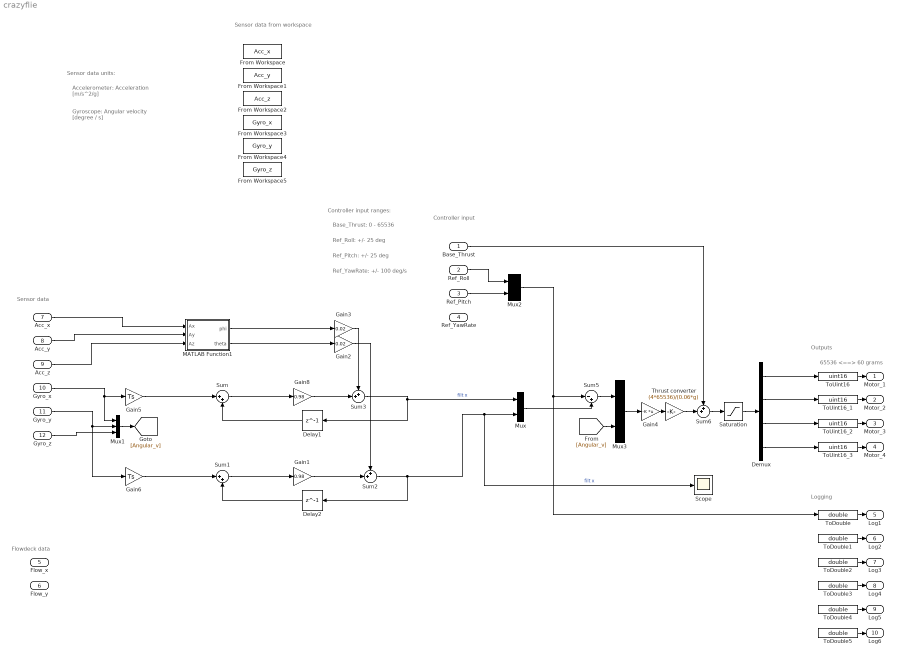
== matlab function crazyflie/MATLAB Function1 ==
function [phi, theta] = fcn(Ax,Ay,Az)
    
phi = atan2d(Ay,Az);
theta = atan2d(-Ax,norm([Ay Az]));
end

/*
 * crazyflie.c
 *
 * Academic License - for use in teaching, academic research, and meeting
 * course requirements at degree granting institutions only.  Not for
 * government, commercial, or other organizational use.
 *
 * Code generation for model "crazyflie".
 *
 * Model version              : 6.18
 * Simulink Coder version : 9.4 (R2020b) 29-Jul-2020
 * C source code generated on : Tue May 25 20:40:19 2021
 *
 * Target selection: grt.tlc
 * Note: GRT includes extra infrastructure and instrumentation for prototyping
 * Embedded hardware selection: ARM Compatible->ARM Cortex
 * Code generation objectives: Unspecified
 * Validation result: Not run
 */

#include "crazyflie.h"
#include "crazyflie_private.h"

/* Block states (default storage) */
DW_crazyflie_T crazyflie_DW;

/* External inputs (root inport signals with default storage) */
ExtU_crazyflie_T crazyflie_U;

/* External outputs (root outports fed by signals with default storage) */
ExtY_crazyflie_T crazyflie_Y;

/* Real-time model */
static RT_MODEL_crazyflie_T crazyflie_M_;
RT_MODEL_crazyflie_T *const crazyflie_M = &crazyflie_M_;
real_T rt_atan2d_snf(real_T u0, real_T u1)
{
  real_T y;
  int32_T u0_0;
  int32_T u1_0;
  if (rtIsNaN(u0) || rtIsNaN(u1)) {
    y = (rtNaN);
  } else if (rtIsInf(u0) && rtIsInf(u1)) {
    if (u0 > 0.0) {
      u0_0 = 1;
    } else {
      u0_0 = -1;
    }

    if (u1 > 0.0) {
      u1_0 = 1;
    } else {
      u1_0 = -1;
    }

    y = atan2(u0_0, u1_0);
  } else if (u1 == 0.0) {
    if (u0 > 0.0) {
      y = RT_PI / 2.0;
    } else if (u0 < 0.0) {
      y = -(RT_PI / 2.0);
    } else {
      y = 0.0;
    }
  } else {
    y = atan2(u0, u1);
  }

  return y;
}

/* Model step function */
void crazyflie_step(void)
{
  /* local block i/o variables */
  real_T rtb_filtx_a;
  real_T scale_0[5];
  real_T rtb_Saturation[4];
  real_T tmp[4];
  real_T absxk;
  real_T scale;
  real_T t;
  real_T y;
  int32_T i;
  int32_T i_0;

  /* MATLAB Function: '<Root>/MATLAB Function1' incorporates:
   *  Inport: '<Root>/Acc_y'
   *  Inport: '<Root>/Acc_z'
   */
  /* MATLAB Function 'MATLAB Function1': '<S1>:1' */
  /* '<S1>:1:3' phi = atan2d(Ay,Az); */
  /* '<S1>:1:4' theta = atan2d(-Ax,norm([Ay Az])); */
  scale = 3.3121686421112381E-170;
  absxk = fabs(crazyflie_U.Acc_y);
  if (absxk > 3.3121686421112381E-170) {
    y = 1.0;
    scale = absxk;
  } else {
    t = absxk / 3.3121686421112381E-170;
    y = t * t;
  }

  absxk = fabs(crazyflie_U.Acc_z);
  if (absxk > scale) {
    t = scale / absxk;
    y = y * t * t + 1.0;
    scale = absxk;
  } else {
    t = absxk / scale;
    y += t * t;
  }

  y = scale * sqrt(y);

  /* Sum: '<Root>/Sum3' incorporates:
   *  Delay: '<Root>/Delay1'
   *  Gain: '<Root>/Gain3'
   *  Gain: '<Root>/Gain5'
   *  Gain: '<Root>/Gain8'
   *  Inport: '<Root>/Acc_y'
   *  Inport: '<Root>/Acc_z'
   *  Inport: '<Root>/Gyro_x'
   *  MATLAB Function: '<Root>/MATLAB Function1'
   *  Sum: '<Root>/Sum'
   */
  scale = (0.0001 * crazyflie_U.Gyro_x + crazyflie_DW.Delay1_DSTATE) * 0.98 +
    57.295779513082323 * rt_atan2d_snf(crazyflie_U.Acc_y, crazyflie_U.Acc_z) *
    0.02;

  /* Sum: '<Root>/Sum2' incorporates:
   *  Delay: '<Root>/Delay2'
   *  Gain: '<Root>/Gain1'
   *  Gain: '<Root>/Gain2'
   *  Gain: '<Root>/Gain6'
   *  Inport: '<Root>/Acc_x'
   *  Inport: '<Root>/Gyro_y'
   *  MATLAB Function: '<Root>/MATLAB Function1'
   *  Sum: '<Root>/Sum1'
   */
  rtb_filtx_a = (0.0001 * crazyflie_U.Gyro_y + crazyflie_DW.Delay2_DSTATE) *
    0.98 + 57.295779513082323 * rt_atan2d_snf(-crazyflie_U.Acc_x, y) * 0.02;

  /* SignalConversion generated from: '<Root>/Gain4' incorporates:
   *  Inport: '<Root>/Gyro_x'
   *  Inport: '<Root>/Gyro_y'
   *  Inport: '<Root>/Gyro_z'
   *  Inport: '<Root>/Ref_Pitch'
   *  Inport: '<Root>/Ref_Roll'
   *  Sum: '<Root>/Sum5'
   */
  scale_0[0] = scale - crazyflie_U.Ref_Roll;
  scale_0[1] = rtb_filtx_a - crazyflie_U.Ref_Pitch;
  scale_0[2] = crazyflie_U.Gyro_x;
  scale_0[3] = crazyflie_U.Gyro_y;
  scale_0[4] = crazyflie_U.Gyro_z;
  for (i = 0; i < 4; i++) {
    /* Gain: '<Root>/Gain4' */
    tmp[i] = 0.0;
    for (i_0 = 0; i_0 < 5; i_0++) {
      tmp[i] += crazyflie_ConstP.Gain4_Gain[(i_0 << 2) + i] * scale_0[i_0];
    }

    /* End of Gain: '<Root>/Gain4' */

    /* Saturate: '<Root>/Saturation' incorporates:
     *  Gain: '<Root>/Thrust converter'
     *  Inport: '<Root>/Base_Thrust'
     *  Sum: '<Root>/Sum6'
     */
    absxk = 445368.67142371729 * tmp[i] + crazyflie_U.Base_Thrust;
    if (absxk > 65536.0) {
      rtb_Saturation[i] = 65536.0;
    } else if (absxk < 0.0) {
      rtb_Saturation[i] = 0.0;
    } else {
      rtb_Saturation[i] = absxk;
    }

    /* End of Saturate: '<Root>/Saturation' */
  }

  /* DataTypeConversion: '<Root>/ToUint16' */
  if (rtb_Saturation[0] < 65536.0) {
    /* Outport: '<Root>/Motor_1' */
    crazyflie_Y.Motor_1 = (uint16_T)rtb_Saturation[0];
  } else {
    /* Outport: '<Root>/Motor_1' */
    crazyflie_Y.Motor_1 = MAX_uint16_T;
  }

  /* End of DataTypeConversion: '<Root>/ToUint16' */

  /* DataTypeConversion: '<Root>/ToUint16_1' */
  if (rtb_Saturation[1] < 65536.0) {
    /* Outport: '<Root>/Motor_2' */
    crazyflie_Y.Motor_2 = (uint16_T)rtb_Saturation[1];
  } else {
    /* Outport: '<Root>/Motor_2' */
    crazyflie_Y.Motor_2 = MAX_uint16_T;
  }

  /* End of DataTypeConversion: '<Root>/ToUint16_1' */

  /* DataTypeConversion: '<Root>/ToUint16_2' */
  if (rtb_Saturation[2] < 65536.0) {
    /* Outport: '<Root>/Motor_3' */
    crazyflie_Y.Motor_3 = (uint16_T)rtb_Saturation[2];
  } else {
    /* Outport: '<Root>/Motor_3' */
    crazyflie_Y.Motor_3 = MAX_uint16_T;
  }

  /* End of DataTypeConversion: '<Root>/ToUint16_2' */

  /* DataTypeConversion: '<Root>/ToUint16_3' */
  if (rtb_Saturation[3] < 65536.0) {
    /* Outport: '<Root>/Motor_4' */
    crazyflie_Y.Motor_4 = (uint16_T)rtb_Saturation[3];
  } else {
    /* Outport: '<Root>/Motor_4' */
    crazyflie_Y.Motor_4 = MAX_uint16_T;
  }

  /* End of DataTypeConversion: '<Root>/ToUint16_3' */

  /* Outport: '<Root>/Log1' incorporates:
   *  Inport: '<Root>/Ref_Pitch'
   *  Inport: '<Root>/Ref_Roll'
   */
  crazyflie_Y.Log1[0] = crazyflie_U.Ref_Roll;
  crazyflie_Y.Log1[1] = crazyflie_U.Ref_Pitch;

  /* Update for Delay: '<Root>/Delay1' */
  crazyflie_DW.Delay1_DSTATE = scale;

  /* Update for Delay: '<Root>/Delay2' */
  crazyflie_DW.Delay2_DSTATE = rtb_filtx_a;

  /* Matfile logging */
  rt_UpdateTXYLogVars(crazyflie_M->rtwLogInfo, (&crazyflie_M->Timing.taskTime0));

  /* signal main to stop simulation */
  {                                    /* Sample time: [0.0001s, 0.0s] */
    if ((rtmGetTFinal(crazyflie_M)!=-1) &&
        !((rtmGetTFinal(crazyflie_M)-crazyflie_M->Timing.taskTime0) >
          crazyflie_M->Timing.taskTime0 * (DBL_EPSILON))) {
      rtmSetErrorStatus(crazyflie_M, "Simulation finished");
    }
  }

  /* Update absolute time for base rate */
  /* The "clockTick0" counts the number of times the code of this task has
   * been executed. The absolute time is the multiplication of "clockTick0"
   * and "Timing.stepSize0". Size of "clockTick0" ensures timer will not
   * overflow during the application lifespan selected.
   * Timer of this task consists of two 32 bit unsigned integers.
   * The two integers represent the low bits Timing.clockTick0 and the high bits
   * Timing.clockTickH0. When the low bit overflows to 0, the high bits increment.
   */
  if (!(++crazyflie_M->Timing.clockTick0)) {
    ++crazyflie_M->Timing.clockTickH0;
  }

  crazyflie_M->Timing.taskTime0 = crazyflie_M->Timing.clockTick0 *
    crazyflie_M->Timing.stepSize0 + crazyflie_M->Timing.clockTickH0 *
    crazyflie_M->Timing.stepSize0 * 4294967296.0;
}
